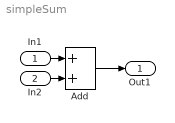
/*
 * simpleSum.c
 *
 * Code generation for model "simpleSum".
 *
 * Model version              : 1.6
 * Simulink Coder version : 9.2 (R2019b) 18-Jul-2019
 * C source code generated on : Fri Oct 25 15:31:56 2019
 *
 * Target selection: grt.tlc
 * Note: GRT includes extra infrastructure and instrumentation for prototyping
 * Embedded hardware selection: Intel->x86-64 (Windows64)
 * Code generation objective: Debugging
 * Validation result: Not run
 */

#include "simpleSum.h"
#include "simpleSum_private.h"

/* External inputs (root inport signals with default storage) */
ExtU_simpleSum_T simpleSum_U;

/* External outputs (root outports fed by signals with default storage) */
ExtY_simpleSum_T simpleSum_Y;

/* Real-time model */
RT_MODEL_simpleSum_T simpleSum_M_;
RT_MODEL_simpleSum_T *const simpleSum_M = &simpleSum_M_;

/* Model step function */
void simpleSum_step(void)
{
  /* Outport: '<Root>/Out1' incorporates:
   *  Inport: '<Root>/In1'
   *  Inport: '<Root>/In2'
   *  Sum: '<Root>/Add'
   */
  simpleSum_Y.Out1 = simpleSum_U.In1 + simpleSum_U.In2;
}
